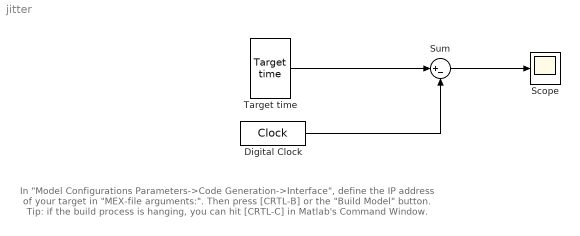
/*
 * File: jitter.c
 *
 * Real-Time Workshop code generated for Simulink model jitter.
 *
 * Model version                        : 1.11
 * Real-Time Workshop file version      : 7.6.2  (R2010bSP2)  02-Mar-2012
 * Real-Time Workshop file generated on : Fri Apr 22 17:18:52 2016
 * TLC version                          : 7.6 (Jul 13 2010)
 * C/C++ source code generated on       : Fri Apr 22 17:18:52 2016
 *
 * Target selection: ert_rpi.tlc
 * Embedded hardware selection: ARM Compatible->ARM 11
 * Code generation objectives: Unspecified
 * Validation result: Not run
 */

#include "jitter.h"
#include "jitter_private.h"
#include <stdio.h>
#include "jitter_dt.h"

/* Block signals (auto storage) */
BlockIO_jitter jitter_B;

/* Block states (auto storage) */
D_Work_jitter jitter_DWork;

/* Real-time model */
RT_MODEL_jitter jitter_M_;
RT_MODEL_jitter *jitter_M = &jitter_M_;

/* Model step function */
void jitter_step(void)
{
  /* local block i/o variables */
  real_T rtb_DigitalClock;

  {
    boolean_T rtmStopReq = FALSE;
    rtExtModePauseIfNeeded(jitter_M->extModeInfo, 1, &rtmStopReq);
    if (rtmStopReq) {
      rtmSetStopRequested(jitter_M, TRUE);
    }

    if (rtmGetStopRequested(jitter_M) == TRUE) {
      rtmSetErrorStatus(jitter_M, "Simulation finished");
      return;
    }
  }

  /* S-Function (rpi_sfun_time): '<S1>/RPI time' */
  rpi_sfun_time_Outputs_wrapper( &jitter_B.RPItime, &jitter_P.RPItime_P1, 1);

  /* DigitalClock: '<Root>/Digital Clock' */
  rtb_DigitalClock = jitter_M->Timing.taskTime0;

  /* Sum: '<Root>/Sum' */
  jitter_B.Sum = jitter_B.RPItime - rtb_DigitalClock;

  /* external mode */
  {
    boolean_T rtmStopReq = FALSE;
    rtExtModeOneStep(jitter_M->extModeInfo, 1, &rtmStopReq);
    if (rtmStopReq) {
      rtmSetStopRequested(jitter_M, TRUE);
    }
  }

  rtExtModeUploadCheckTrigger(1);

  {                                    /* Sample time: [0.01s, 0.0s] */
    rtExtModeUpload(0, jitter_M->Timing.taskTime0);
  }

  /* signal main to stop simulation */
  {                                    /* Sample time: [0.01s, 0.0s] */
    if ((rtmGetTFinal(jitter_M)!=-1) &&
        !((rtmGetTFinal(jitter_M)-jitter_M->Timing.taskTime0) >
          jitter_M->Timing.taskTime0 * (DBL_EPSILON))) {
      rtmSetErrorStatus(jitter_M, "Simulation finished");
    }

    if (rtmGetStopRequested(jitter_M)) {
      rtmSetErrorStatus(jitter_M, "Simulation finished");
    }
  }

  /* Update absolute time for base rate */
  /* The "clockTick0" counts the number of times the code of this task has
   * been executed. The absolute time is the multiplication of "clockTick0"
   * and "Timing.stepSize0". Size of "clockTick0" ensures timer will not
   * overflow during the application lifespan selected.
   */
  jitter_M->Timing.taskTime0 =
    (++jitter_M->Timing.clockTick0) * jitter_M->Timing.stepSize0;
}
